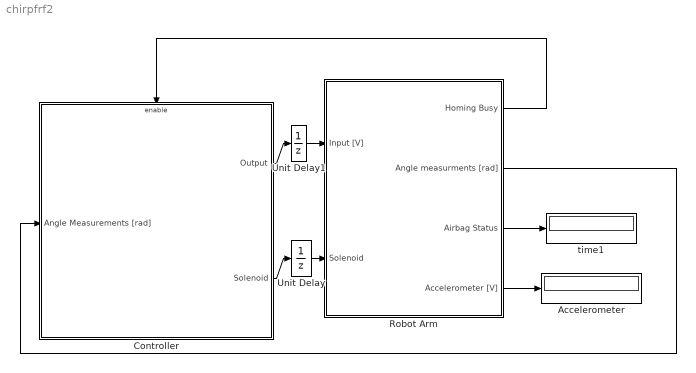
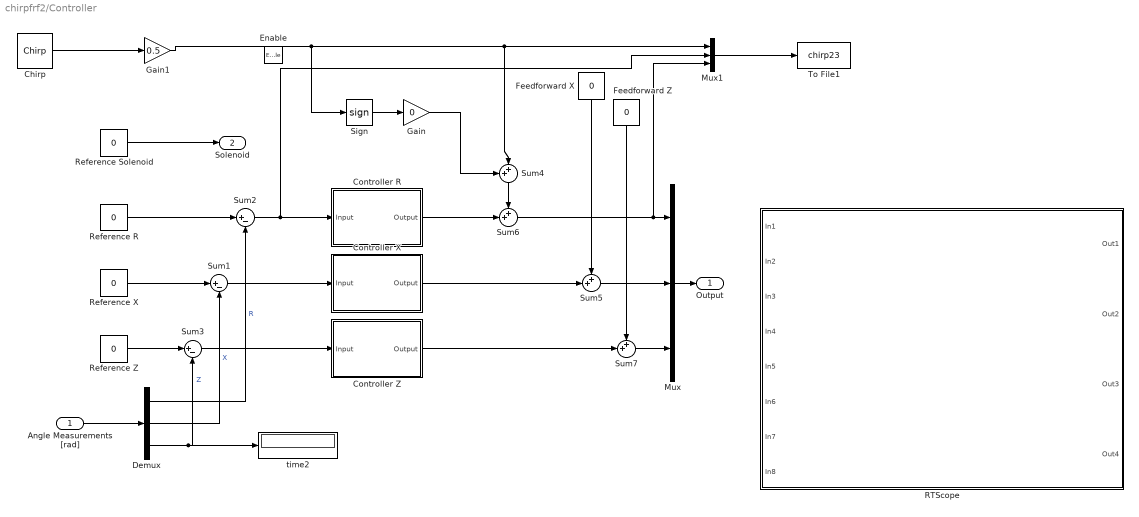
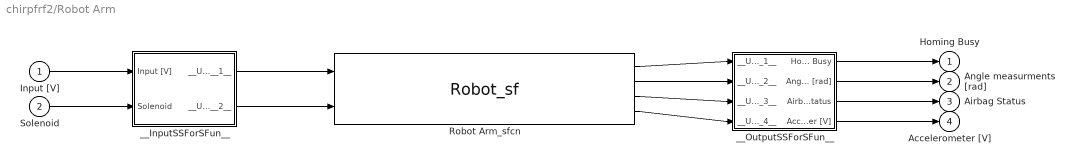
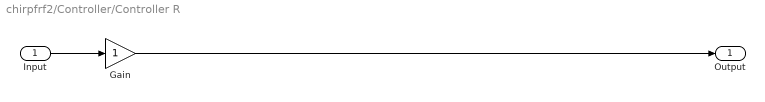
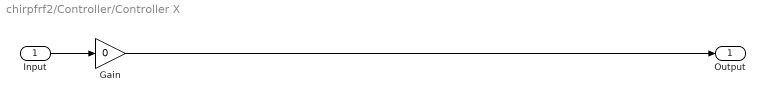
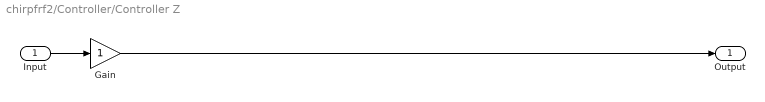
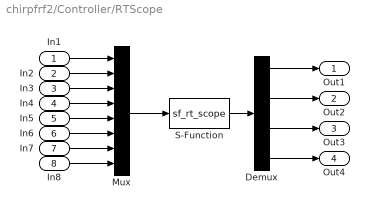
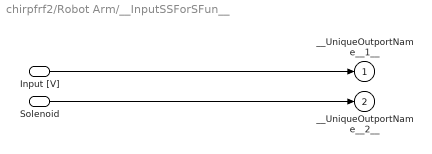
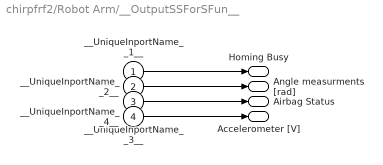
/*
 * chirpfrf2.c
 *
 * Code generation for model "chirpfrf2.mdl".
 *
 * Model version              : 1.916
 * Simulink Coder version : 8.1 (R2011b) 08-Jul-2011
 * C source code generated on : Sat Nov 28 14:50:34 2015
 *
 * Target selection: ectarget.tlc
 * Note: GRT includes extra infrastructure and instrumentation for prototyping
 * Embedded hardware selection: 32-bit Generic
 * Code generation objectives: Unspecified
 * Validation result: Not run
 */
#include "chirpfrf2.h"
#include "chirpfrf2_private.h"
#include "chirpfrf2_dt.h"
#undef S_FUNCTION_NAME
#if !defined(RTW_GENERATED_SFCN_TUNABLE_PRMS_Robot_sf)
#define RTW_GENERATED_SFCN_TUNABLE_PRMS_Robot_sf
#endif

#include "Robot_sf.h"

const real_T chirpfrf2_RGND = 0.0;     /* real_T ground */

/* Block signals (auto storage) */
BlockIO_chirpfrf2 chirpfrf2_B;

/* Block states (auto storage) */
D_Work_chirpfrf2 chirpfrf2_DWork;

/* Real-time model */
RT_MODEL_chirpfrf2 chirpfrf2_M_;
RT_MODEL_chirpfrf2 *const chirpfrf2_M = &chirpfrf2_M_;

/*
 * Writes out MAT-file header.  Returns success or failure.
 * Returns:
 *      0 - success
 *      1 - failure
 */
int_T rt_WriteMat4FileHeader(FILE *fp, int32_T m, int32_T n, const char *name)
{
  typedef enum { ELITTLE_ENDIAN, EBIG_ENDIAN } ByteOrder;

  int16_T one = 1;
  ByteOrder byteOrder = (*((int8_T *)&one)==1) ? ELITTLE_ENDIAN : EBIG_ENDIAN;
  int32_T type = (byteOrder == ELITTLE_ENDIAN) ? 0: 1000;
  int32_T imagf = 0;
  int32_T name_len = strlen(name) + 1;
  if ((fwrite(&type, sizeof(int32_T), 1, fp) == 0) ||
      (fwrite(&m, sizeof(int32_T), 1, fp) == 0) ||
      (fwrite(&n, sizeof(int32_T), 1, fp) == 0) ||
      (fwrite(&imagf, sizeof(int32_T), 1, fp) == 0) ||
      (fwrite(&name_len, sizeof(int32_T), 1, fp) == 0) ||
      (fwrite(name, sizeof(char), name_len, fp) == 0)) {
    return(1);
  } else {
    return(0);
  }
}                                      /* end rt_WriteMat4FileHeader */

/* Model output function */
void chirpfrf2_output(int_T tid)
{
  /* local block i/o variables */
  real_T rtb_TmpSignalConversionAtToFile[3];
  real_T rtb_Gain1;

  /* Reset subsysRan breadcrumbs */
  srClearBC(chirpfrf2_DWork.Controller_SubsysRanBC);

  /* UnitDelay: '<Root>/Unit Delay1' */
  /* RTWBLOCK_START_COMMENT */
  chirpfrf2_B.UnitDelay1[0] = chirpfrf2_DWork.UnitDelay1_DSTATE[0];
  chirpfrf2_B.UnitDelay1[1] = chirpfrf2_DWork.UnitDelay1_DSTATE[1];
  chirpfrf2_B.UnitDelay1[2] = chirpfrf2_DWork.UnitDelay1_DSTATE[2];

  /* UnitDelay: '<Root>/Unit Delay' */
  chirpfrf2_B.UnitDelay = chirpfrf2_DWork.UnitDelay_DSTATE;

  /* RTW Generated Level2 S-Function Block: '<S2>/Robot Arm_sfcn' (Robot_sf) */
  {
    SimStruct *rts = chirpfrf2_M->childSfunctions[1];
    sfcnOutputs(rts, 0);
  }

  /* Outputs for Enabled SubSystem: '<Root>/Controller' incorporates:
   *  EnablePort: '<S1>/Enable'
   */
  if (chirpfrf2_B.RobotArm_sfcn_o1 > 0.0) {
    if (!chirpfrf2_DWork.Controller_MODE) {
      chirpfrf2_DWork.Controller_MODE = TRUE;
    }
  } else {
    if (chirpfrf2_DWork.Controller_MODE) {
      chirpfrf2_DWork.Controller_MODE = FALSE;
    }
  }

  if (chirpfrf2_DWork.Controller_MODE) {
    /* DSP System Toolbox Chirp (sdspchirp) - '<S1>/Chirp' */
    /* Unidirectional Logarithmic  */
    {
      real_T *y = &rtb_Gain1;
      real_T instantPhase = 0.0;
      instantPhase = (chirpfrf2_DWork.Chirp_SWEEP_DIRECTION == 0) ?
        chirpfrf2_DWork.Chirp_BETA*chirpfrf2_P.Chirp_INITIAL_FREQ*(pow
        (chirpfrf2_DWork.Chirp_MIN_FREQ,chirpfrf2_DWork.Chirp_CURRENT_STEP /
         chirpfrf2_P.Chirp_TIME_TARGET) - 1.0) :
        chirpfrf2_DWork.Chirp_PERIOD_THETA - chirpfrf2_DWork.Chirp_BETA*
        chirpfrf2_P.Chirp_INITIAL_FREQ*(pow(chirpfrf2_DWork.Chirp_MIN_FREQ,
        (chirpfrf2_P.Chirp_PERIOD_SWEEP-chirpfrf2_DWork.Chirp_CURRENT_STEP) /
        chirpfrf2_P.Chirp_TIME_TARGET) - 1.0);
      instantPhase -= (int_T)instantPhase;
      *y = cos(DSP_TWO_PI * (instantPhase + chirpfrf2_DWork.Chirp_ACC_PHASE) +
               chirpfrf2_P.Chirp_PHASE);
      chirpfrf2_DWork.Chirp_CURRENT_STEP += 0.000244140625;/* Go to next time step */
      if (chirpfrf2_DWork.Chirp_CURRENT_STEP > (chirpfrf2_P.Chirp_PERIOD_SWEEP +
           DBL_EPSILON)) {
        chirpfrf2_DWork.Chirp_CURRENT_STEP = chirpfrf2_DWork.Chirp_CURRENT_STEP
          - chirpfrf2_P.Chirp_PERIOD_SWEEP;
        chirpfrf2_DWork.Chirp_ACC_PHASE += instantPhase;
        while (chirpfrf2_DWork.Chirp_ACC_PHASE > 1.0) {
          chirpfrf2_DWork.Chirp_ACC_PHASE -= 1.0;
        }
      }
    }

    /* Gain: '<S1>/Gain1' */
    rtb_Gain1 *= chirpfrf2_P.Gain1_Gain;

    /* Sum: '<S1>/Sum2' incorporates:
     *  Constant: '<S1>/Reference R'
     */
    chirpfrf2_B.Sum2 = chirpfrf2_P.ReferenceR_Value -
      chirpfrf2_B.RobotArm_sfcn_o2[0];

    /* Sum: '<S1>/Sum4' incorporates:
     *  Gain: '<S1>/Gain'
     *  Signum: '<S1>/Sign'
     */
    chirpfrf2_B.Sum4 = (rtb_Gain1 < 0.0 ? -1.0 : rtb_Gain1 > 0.0 ? 1.0 :
                        rtb_Gain1 == 0.0 ? 0.0 : rtb_Gain1) *
      chirpfrf2_P.Gain_Gain + rtb_Gain1;

    /* Sum: '<S1>/Sum6' incorporates:
     *  Gain: '<S3>/Gain'
     */
    chirpfrf2_B.Sum6 = chirpfrf2_P.Gain_Gain_g * chirpfrf2_B.Sum2 +
      chirpfrf2_B.Sum4;

    /* SignalConversion: '<S1>/TmpSignal ConversionAtTo File1Inport1' */
    rtb_TmpSignalConversionAtToFile[0] = rtb_Gain1;
    rtb_TmpSignalConversionAtToFile[1] = chirpfrf2_B.Sum2;
    rtb_TmpSignalConversionAtToFile[2] = chirpfrf2_B.Sum6;

    /* ToFile: '<S1>/To File1' */
    if (!(++chirpfrf2_DWork.ToFile1_IWORK.Decimation % 1) &&
        (chirpfrf2_DWork.ToFile1_IWORK.Count*4)+1 < 100000000 ) {
      FILE *fp = (FILE *) chirpfrf2_DWork.ToFile1_PWORK.FilePtr;
      if (fp != (NULL)) {
        real_T u[4];
        chirpfrf2_DWork.ToFile1_IWORK.Decimation = 0;
        u[0] = chirpfrf2_M->Timing.t[1];
        u[1] = rtb_TmpSignalConversionAtToFile[0];
        u[2] = rtb_TmpSignalConversionAtToFile[1];
        u[3] = rtb_TmpSignalConversionAtToFile[2];
        if (fwrite(u, sizeof(real_T), 4, fp) != 4) {
          rtmSetErrorStatus(chirpfrf2_M, "Error writing to MAT-file chirp19.mat");
          return;
        }

        if (((++chirpfrf2_DWork.ToFile1_IWORK.Count)*4)+1 >= 100000000) {
          (void)fprintf(stdout,
                        "*** The ToFile block will stop logging data before\n"
                        "    the simulation has ended, because it has reached\n"
                        "    the maximum number of elements (100000000)\n"
                        "    allowed in MAT-file chirp19.mat.\n");
        }
      }
    }

    /* Sum: '<S1>/Sum5' incorporates:
     *  Constant: '<S1>/Feedforward X'
     *  Constant: '<S1>/Reference X'
     *  Gain: '<S4>/Gain'
     *  Sum: '<S1>/Sum1'
     */
    chirpfrf2_B.Sum5 = (chirpfrf2_P.ReferenceX_Value -
                        chirpfrf2_B.RobotArm_sfcn_o2[1]) *
      chirpfrf2_P.Gain_Gain_n + chirpfrf2_P.FeedforwardX_Value;

    /* Sum: '<S1>/Sum7' incorporates:
     *  Constant: '<S1>/Feedforward Z'
     *  Constant: '<S1>/Reference Z'
     *  Gain: '<S5>/Gain'
     *  Sum: '<S1>/Sum3'
     */
    chirpfrf2_B.Sum7 = (chirpfrf2_P.ReferenceZ_Value -
                        chirpfrf2_B.RobotArm_sfcn_o2[2]) *
      chirpfrf2_P.Gain_Gain_nk + chirpfrf2_P.FeedforwardZ_Value;

    /* Constant: '<S1>/Reference Solenoid' */
    chirpfrf2_B.ReferenceSolenoid = chirpfrf2_P.ReferenceSolenoid_Value;

    /* Level2 S-Function Block: '<S6>/S-Function' (sf_rt_scope) */
    {
      SimStruct *rts = chirpfrf2_M->childSfunctions[0];
      sfcnOutputs(rts, 0);
    }

    srUpdateBC(chirpfrf2_DWork.Controller_SubsysRanBC);
  }

  /* End of Outputs for SubSystem: '<Root>/Controller' */

  /* tid is required for a uniform function interface.
   * Argument tid is not used in the function. */
  UNUSED_PARAMETER(tid);
}

/* Model update function */
void chirpfrf2_update(int_T tid)
{
  /* Update for UnitDelay: '<Root>/Unit Delay1' */
  chirpfrf2_DWork.UnitDelay1_DSTATE[0] = chirpfrf2_B.Sum6;
  chirpfrf2_DWork.UnitDelay1_DSTATE[1] = chirpfrf2_B.Sum5;
  chirpfrf2_DWork.UnitDelay1_DSTATE[2] = chirpfrf2_B.Sum7;

  /* Update for UnitDelay: '<Root>/Unit Delay' */
  chirpfrf2_DWork.UnitDelay_DSTATE = chirpfrf2_B.ReferenceSolenoid;

  /* RTW Generated Level2 S-Function Block: '<S2>/Robot Arm_sfcn' (Robot_sf) */
  {
    SimStruct *rts = chirpfrf2_M->childSfunctions[1];
    sfcnUpdate(rts, 0);
    if (ssGetErrorStatus(rts) != (NULL))
      return;
  }

  /* Update absolute time for base rate */
  /* The "clockTick0" counts the number of times the code of this task has
   * been executed. The absolute time is the multiplication of "clockTick0"
   * and "Timing.stepSize0". Size of "clockTick0" ensures timer will not
   * overflow during the application lifespan selected.
   * Timer of this task consists of two 32 bit unsigned integers.
   * The two integers represent the low bits Timing.clockTick0 and the high bits
   * Timing.clockTickH0. When the low bit overflows to 0, the high bits increment.
   */
  if (!(++chirpfrf2_M->Timing.clockTick0)) {
    ++chirpfrf2_M->Timing.clockTickH0;
  }

  chirpfrf2_M->Timing.t[0] = chirpfrf2_M->Timing.clockTick0 *
    chirpfrf2_M->Timing.stepSize0 + chirpfrf2_M->Timing.clockTickH0 *
    chirpfrf2_M->Timing.stepSize0 * 4294967296.0;

  {
    /* Update absolute timer for sample time: [0.000244140625s, 0.0s] */
    /* The "clockTick1" counts the number of times the code of this task has
     * been executed. The absolute time is the multiplication of "clockTick1"
     * and "Timing.stepSize1". Size of "clockTick1" ensures timer will not
     * overflow during the application lifespan selected.
     * Timer of this task consists of two 32 bit unsigned integers.
     * The two integers represent the low bits Timing.clockTick1 and the high bits
     * Timing.clockTickH1. When the low bit overflows to 0, the high bits increment.
     */
    if (!(++chirpfrf2_M->Timing.clockTick1)) {
      ++chirpfrf2_M->Timing.clockTickH1;
    }

    chirpfrf2_M->Timing.t[1] = chirpfrf2_M->Timing.clockTick1 *
      chirpfrf2_M->Timing.stepSize1 + chirpfrf2_M->Timing.clockTickH1 *
      chirpfrf2_M->Timing.stepSize1 * 4294967296.0;
  }

  /* tid is required for a uniform function interface.
   * Argument tid is not used in the function. */
  UNUSED_PARAMETER(tid);
}
